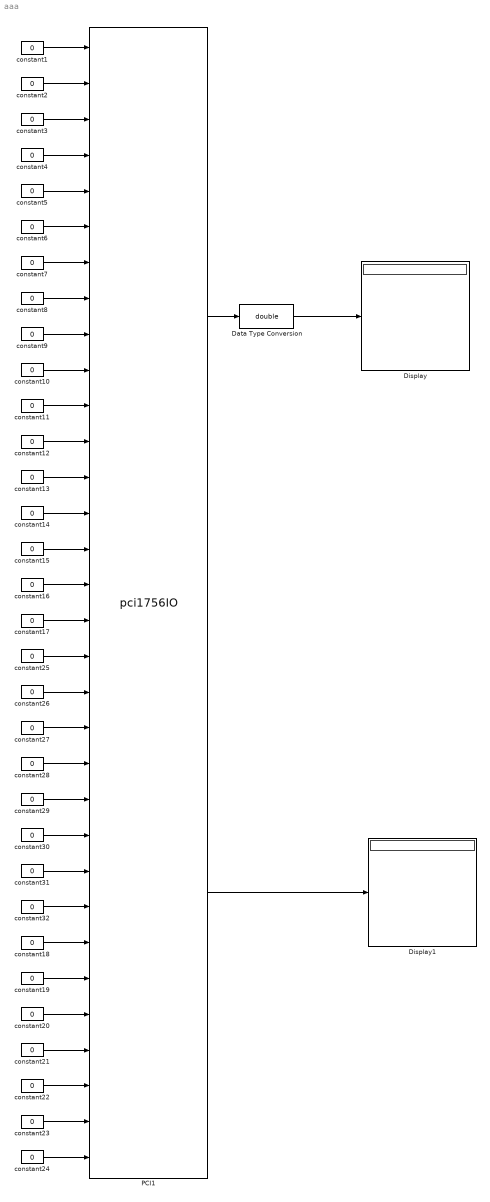
/*
 * aaa.c
 *
 * Code generation for model "aaa".
 *
 * Model version              : 1.14
 * Simulink Coder version : 8.11 (R2016b) 25-Aug-2016
 * C source code generated on : Fri Jul 30 09:33:51 2021
 *
 * Target selection: slrt.tlc
 * Note: GRT includes extra infrastructure and instrumentation for prototyping
 * Embedded hardware selection: Generic->32-bit x86 compatible
 * Code generation objectives: Unspecified
 * Validation result: Not run
 */

#include "rt_logging_mmi.h"
#include "aaa_capi.h"
#include "aaa.h"
#include "aaa_private.h"

/* Block signals (auto storage) */
B_aaa_T aaa_B;

/* Block states (auto storage) */
DW_aaa_T aaa_DW;

/* Real-time model */
RT_MODEL_aaa_T aaa_M_;
RT_MODEL_aaa_T *const aaa_M = &aaa_M_;

/* Model output function */
static void aaa_output(void)
{
  /* Constant: '<Root>/constant1' */
  aaa_B.constant1 = aaa_P.constant1_Value;

  /* Constant: '<Root>/constant2' */
  aaa_B.constant2 = aaa_P.constant2_Value;

  /* Constant: '<Root>/constant3' */
  aaa_B.constant3 = aaa_P.constant3_Value;

  /* Constant: '<Root>/constant4' */
  aaa_B.constant4 = aaa_P.constant4_Value;

  /* Constant: '<Root>/constant5' */
  aaa_B.constant5 = aaa_P.constant5_Value;

  /* Constant: '<Root>/constant6' */
  aaa_B.constant6 = aaa_P.constant6_Value;

  /* Constant: '<Root>/constant7' */
  aaa_B.constant7 = aaa_P.constant7_Value;

  /* Constant: '<Root>/constant8' */
  aaa_B.constant8 = aaa_P.constant8_Value;

  /* Constant: '<Root>/constant9' */
  aaa_B.constant9 = aaa_P.constant9_Value;

  /* Constant: '<Root>/constant10' */
  aaa_B.constant10 = aaa_P.constant10_Value;

  /* Constant: '<Root>/constant11' */
  aaa_B.constant11 = aaa_P.constant11_Value;

  /* Constant: '<Root>/constant12' */
  aaa_B.constant12 = aaa_P.constant12_Value;

  /* Constant: '<Root>/constant13' */
  aaa_B.constant13 = aaa_P.constant13_Value;

  /* Constant: '<Root>/constant14' */
  aaa_B.constant14 = aaa_P.constant14_Value;

  /* Constant: '<Root>/constant15' */
  aaa_B.constant15 = aaa_P.constant15_Value;

  /* Constant: '<Root>/constant16' */
  aaa_B.constant16 = aaa_P.constant16_Value;

  /* Constant: '<Root>/constant17' */
  aaa_B.constant17 = aaa_P.constant17_Value;

  /* Constant: '<Root>/constant25' */
  aaa_B.constant25 = aaa_P.constant25_Value;

  /* Constant: '<Root>/constant26' */
  aaa_B.constant26 = aaa_P.constant26_Value;

  /* Constant: '<Root>/constant27' */
  aaa_B.constant27 = aaa_P.constant27_Value;

  /* Constant: '<Root>/constant28' */
  aaa_B.constant28 = aaa_P.constant28_Value;

  /* Constant: '<Root>/constant29' */
  aaa_B.constant29 = aaa_P.constant29_Value;

  /* Constant: '<Root>/constant30' */
  aaa_B.constant30 = aaa_P.constant30_Value;

  /* Constant: '<Root>/constant31' */
  aaa_B.constant31 = aaa_P.constant31_Value;

  /* Constant: '<Root>/constant32' */
  aaa_B.constant32 = aaa_P.constant32_Value;

  /* Constant: '<Root>/constant18' */
  aaa_B.constant18 = aaa_P.constant18_Value;

  /* Constant: '<Root>/constant19' */
  aaa_B.constant19 = aaa_P.constant19_Value;

  /* Constant: '<Root>/constant20' */
  aaa_B.constant20 = aaa_P.constant20_Value;

  /* Constant: '<Root>/constant21' */
  aaa_B.constant21 = aaa_P.constant21_Value;

  /* Constant: '<Root>/constant22' */
  aaa_B.constant22 = aaa_P.constant22_Value;

  /* Constant: '<Root>/constant23' */
  aaa_B.constant23 = aaa_P.constant23_Value;

  /* Constant: '<Root>/constant24' */
  aaa_B.constant24 = aaa_P.constant24_Value;

  /* Level2 S-Function Block: '<Root>/PCI1' (pci1756IO) */
  {
    SimStruct *rts = aaa_M->childSfunctions[0];
    sfcnOutputs(rts, 0);
  }

  /* DataTypeConversion: '<Root>/Data Type Conversion' */
  memcpy(&aaa_B.DataTypeConversion[0], &aaa_B.PCI1_o1[0], sizeof(real_T) << 4U);
}

/* Model update function */
static void aaa_update(void)
{
  /* Update absolute time for base rate */
  /* The "clockTick0" counts the number of times the code of this task has
   * been executed. The absolute time is the multiplication of "clockTick0"
   * and "Timing.stepSize0". Size of "clockTick0" ensures timer will not
   * overflow during the application lifespan selected.
   * Timer of this task consists of two 32 bit unsigned integers.
   * The two integers represent the low bits Timing.clockTick0 and the high bits
   * Timing.clockTickH0. When the low bit overflows to 0, the high bits increment.
   */
  if (!(++aaa_M->Timing.clockTick0)) {
    ++aaa_M->Timing.clockTickH0;
  }

  aaa_M->Timing.t[0] = aaa_M->Timing.clockTick0 * aaa_M->Timing.stepSize0 +
    aaa_M->Timing.clockTickH0 * aaa_M->Timing.stepSize0 * 4294967296.0;
}
